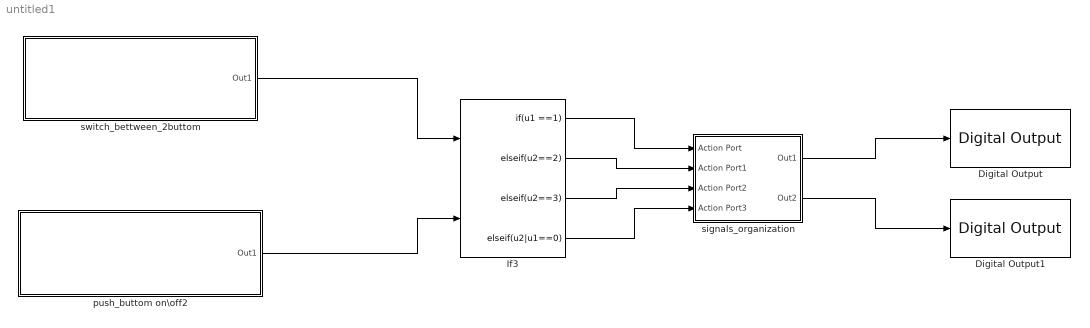
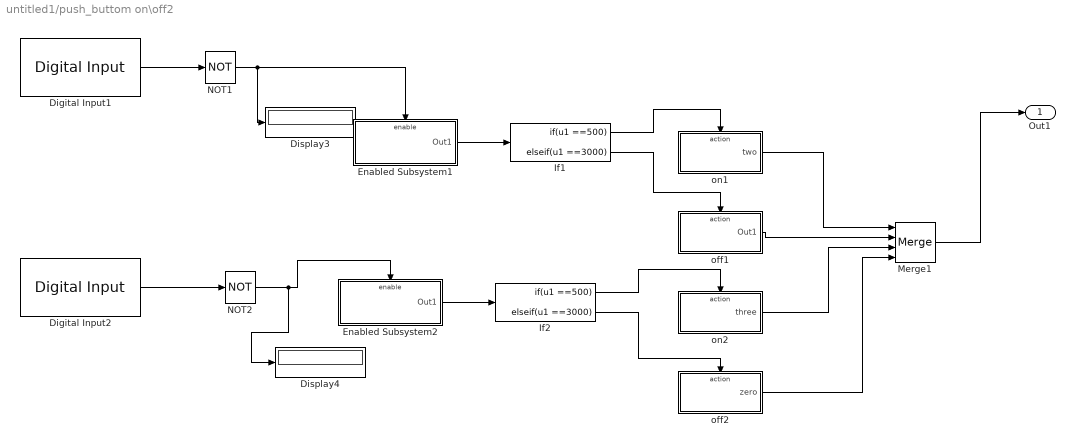
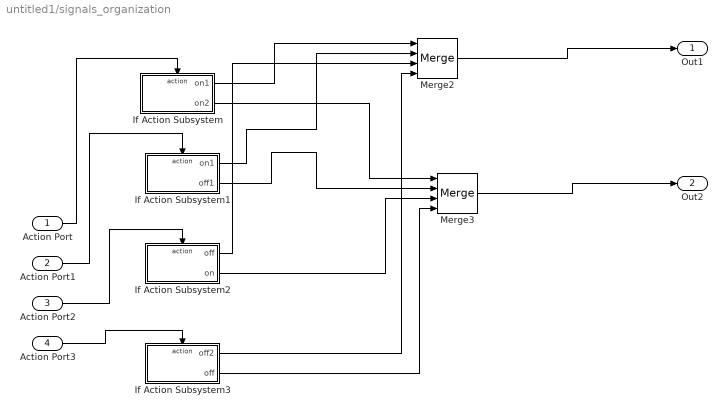
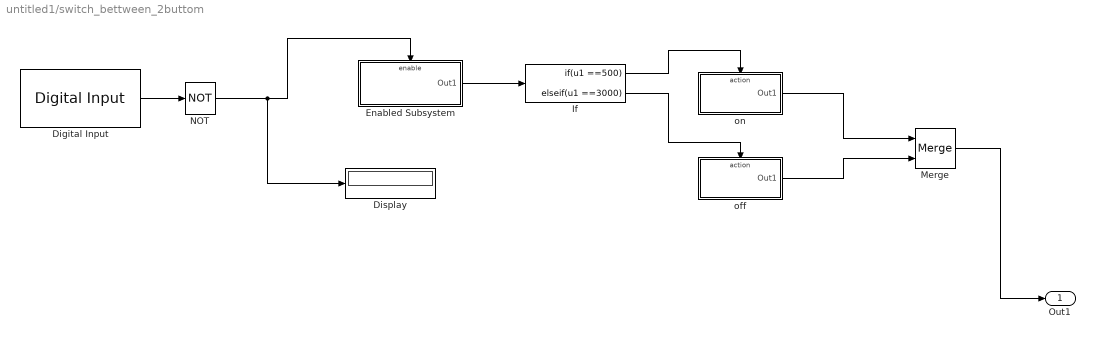
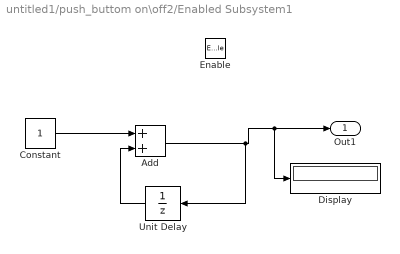
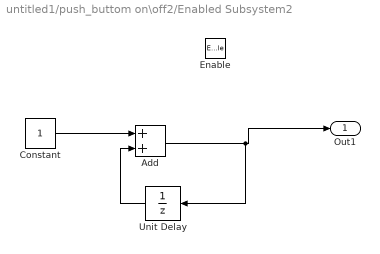
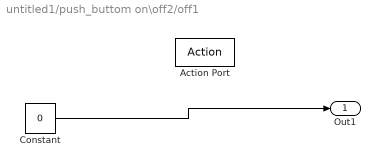
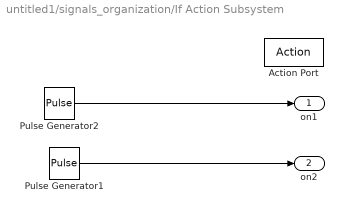
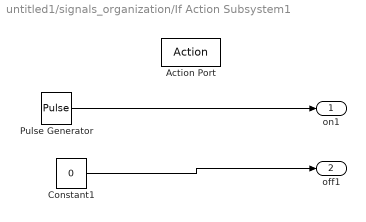
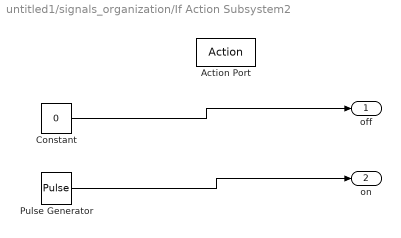
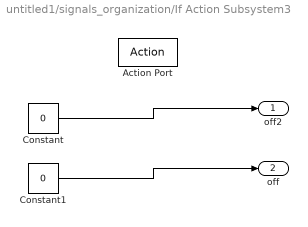
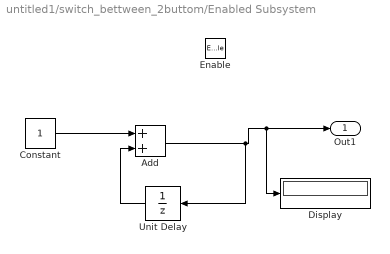
== system untitled1/push_buttom on\off2/off2 ==
  Action Port : ActionPort  ActionPortLabel=elseif(u1 ==3000)
  Constant : Constant  Value=0
  zero : Outport
  wires:
  Constant/1 -> zero/1

== system untitled1/push_buttom on\off2/on1 ==
  Action Port : ActionPort  ActionPortLabel=if(u1 ==500)
  Constant : Constant  Value=2
  two : Outport
  wires:
  Constant/1 -> two/1

== system untitled1/push_buttom on\off2/on2 ==
  Action Port : ActionPort  ActionPortLabel=if(u1 ==500)
  Constant : Constant  Value=3
  three : Outport
  wires:
  Constant/1 -> three/1

== system untitled1/switch_bettween_2buttom/off ==
  Action Port : ActionPort  ActionPortLabel=elseif(u1 ==3000)
  Constant : Constant  Value=0
  Out1 : Outport
  wires:
  Constant/1 -> Out1/1

== system untitled1/switch_bettween_2buttom/on ==
  Action Port : ActionPort  ActionPortLabel=if(u1 ==500)
  Constant : Constant
  Out1 : Outport
  wires:
  Constant/1 -> Out1/1

/*
 * File: untitled1.c
 *
 * Code generated for Simulink model 'untitled1'.
 *
 * Model version                  : 1.1
 * Simulink Coder version         : 9.8 (R2022b) 13-May-2022
 * C/C++ source code generated on : Mon Mar 25 17:41:33 2024
 *
 * Target selection: ert.tlc
 * Embedded hardware selection: Atmel->AVR
 * Code generation objectives: Unspecified
 * Validation result: Not run
 */

#include "untitled1.h"
#include "rtwtypes.h"
#include "untitled1_private.h"
#include <math.h>

/* Block signals (default storage) */
B_untitled1_T untitled1_B;

/* Block states (default storage) */
DW_untitled1_T untitled1_DW;

/* Real-time model */
static RT_MODEL_untitled1_T untitled1_M_;
RT_MODEL_untitled1_T *const untitled1_M = &untitled1_M_;

/*
 * Output and update for action system:
 *    '<S1>/off1'
 *    '<S3>/on'
 *    '<S3>/off'
 */
void untitled1_off1(real_T *rty_Out1, P_off1_untitled1_T *localP)
{
  /* SignalConversion generated from: '<S6>/Out1' incorporates:
   *  Constant: '<S6>/Constant'
   */
  *rty_Out1 = localP->Constant_Value;
}

real_T rt_roundd_snf(real_T u)
{
  real_T y;
  if (fabs(u) < 4.503599627370496E+15) {
    if (u >= 0.5) {
      y = floor(u + 0.5);
    } else if (u > -0.5) {
      y = u * 0.0;
    } else {
      y = ceil(u - 0.5);
    }
  } else {
    y = u;
  }

  return y;
}

/* Model step function */
void untitled1_step(void)
{
  real_T tmp;
  uint8_T tmp_0;
  boolean_T b_value;

  /* Reset subsysRan breadcrumbs */
  srClearBC(untitled1_DW.IfActionSubsystem_SubsysRanBC);

  /* Reset subsysRan breadcrumbs */
  srClearBC(untitled1_DW.IfActionSubsystem1_SubsysRanBC);

  /* Reset subsysRan breadcrumbs */
  srClearBC(untitled1_DW.IfActionSubsystem2_SubsysRanBC);

  /* Reset subsysRan breadcrumbs */
  srClearBC(untitled1_DW.IfActionSubsystem3_SubsysRanBC);

  /* Reset subsysRan breadcrumbs */
  srClearBC(untitled1_DW.EnabledSubsystem1_SubsysRanBC);

  /* Reset subsysRan breadcrumbs */
  srClearBC(untitled1_DW.EnabledSubsystem2_SubsysRanBC);

  /* Reset subsysRan breadcrumbs */
  srClearBC(untitled1_DW.on1_SubsysRanBC);

  /* Reset subsysRan breadcrumbs */
  srClearBC(untitled1_DW.off1.off1_SubsysRanBC);

  /* Reset subsysRan breadcrumbs */
  srClearBC(untitled1_DW.on2_SubsysRanBC);

  /* Reset subsysRan breadcrumbs */
  srClearBC(untitled1_DW.off2_SubsysRanBC);

  /* Reset subsysRan breadcrumbs */
  srClearBC(untitled1_DW.EnabledSubsystem_SubsysRanBC);

  /* MATLABSystem: '<S3>/Digital Input' */
  if (untitled1_DW.obj.SampleTime != untitled1_P.DigitalInput_SampleTime) {
    untitled1_DW.obj.SampleTime = untitled1_P.DigitalInput_SampleTime;
  }

  b_value = readDigitalPin(2);

  /* Logic: '<S3>/NOT' incorporates:
   *  MATLABSystem: '<S3>/Digital Input'
   */
  untitled1_B.NOT = !b_value;

  /* Outputs for Enabled SubSystem: '<S3>/Enabled Subsystem' incorporates:
   *  EnablePort: '<S14>/Enable'
   */
  if (untitled1_B.NOT) {
    if (!untitled1_DW.EnabledSubsystem_MODE) {
      /* InitializeConditions for UnitDelay: '<S14>/Unit Delay' */
      untitled1_DW.UnitDelay_DSTATE = untitled1_P.UnitDelay_InitialCondition_k;
      untitled1_DW.EnabledSubsystem_MODE = true;
    }

    /* Sum: '<S14>/Add' incorporates:
     *  Constant: '<S14>/Constant'
     *  UnitDelay: '<S14>/Unit Delay'
     */
    untitled1_B.Add = untitled1_P.Constant_Value_e +
      untitled1_DW.UnitDelay_DSTATE;

    /* Update for UnitDelay: '<S14>/Unit Delay' */
    untitled1_DW.UnitDelay_DSTATE = untitled1_B.Add;
    srUpdateBC(untitled1_DW.EnabledSubsystem_SubsysRanBC);
  } else {
    untitled1_DW.EnabledSubsystem_MODE = false;
  }

  /* End of Outputs for SubSystem: '<S3>/Enabled Subsystem' */

  /* If: '<S3>/If' */
  if (untitled1_B.Add == 500.0) {
    /* Outputs for IfAction SubSystem: '<S3>/on' incorporates:
     *  ActionPort: '<S16>/Action Port'
     */
    untitled1_off1(&untitled1_B.Merge, &untitled1_P.on);

    /* End of Outputs for SubSystem: '<S3>/on' */
  } else if (untitled1_B.Add == 3000.0) {
    /* Outputs for IfAction SubSystem: '<S3>/off' incorporates:
     *  ActionPort: '<S15>/Action Port'
     */
    untitled1_off1(&untitled1_B.Merge, &untitled1_P.off);

    /* End of Outputs for SubSystem: '<S3>/off' */
  }

  /* End of If: '<S3>/If' */
  /* MATLABSystem: '<S1>/Digital Input1' */
  if (untitled1_DW.obj_b.SampleTime != untitled1_P.DigitalInput1_SampleTime) {
    untitled1_DW.obj_b.SampleTime = untitled1_P.DigitalInput1_SampleTime;
  }

  b_value = readDigitalPin(4);

  /* Logic: '<S1>/NOT1' incorporates:
   *  MATLABSystem: '<S1>/Digital Input1'
   */
  untitled1_B.NOT1 = !b_value;

  /* Outputs for Enabled SubSystem: '<S1>/Enabled Subsystem1' incorporates:
   *  EnablePort: '<S4>/Enable'
   */
  if (untitled1_B.NOT1) {
    if (!untitled1_DW.EnabledSubsystem1_MODE) {
      /* InitializeConditions for UnitDelay: '<S4>/Unit Delay' */
      untitled1_DW.UnitDelay_DSTATE_g = untitled1_P.UnitDelay_InitialCondition;
      untitled1_DW.EnabledSubsystem1_MODE = true;
    }

    /* Sum: '<S4>/Add' incorporates:
     *  Constant: '<S4>/Constant'
     *  UnitDelay: '<S4>/Unit Delay'
     */
    untitled1_B.Add_p = untitled1_P.Constant_Value_c +
      untitled1_DW.UnitDelay_DSTATE_g;

    /* Update for UnitDelay: '<S4>/Unit Delay' */
    untitled1_DW.UnitDelay_DSTATE_g = untitled1_B.Add_p;
    srUpdateBC(untitled1_DW.EnabledSubsystem1_SubsysRanBC);
  } else {
    untitled1_DW.EnabledSubsystem1_MODE = false;
  }

  /* End of Outputs for SubSystem: '<S1>/Enabled Subsystem1' */

  /* If: '<S1>/If1' */
  if (untitled1_B.Add_p == 500.0) {
    /* Outputs for IfAction SubSystem: '<S1>/on1' incorporates:
     *  ActionPort: '<S8>/Action Port'
     */
    /* Merge: '<S1>/Merge1' incorporates:
     *  Constant: '<S8>/Constant'
     *  SignalConversion generated from: '<S8>/two'
     */
    untitled1_B.Merge1 = untitled1_P.Constant_Value_o;

    /* End of Outputs for SubSystem: '<S1>/on1' */

    /* Update for IfAction SubSystem: '<S1>/on1' incorporates:
     *  ActionPort: '<S8>/Action Port'
     */
    /* Update for If: '<S1>/If1' */
    srUpdateBC(untitled1_DW.on1_SubsysRanBC);

    /* End of Update for SubSystem: '<S1>/on1' */
  } else if (untitled1_B.Add_p == 3000.0) {
    /* Outputs for IfAction SubSystem: '<S1>/off1' incorporates:
     *  ActionPort: '<S6>/Action Port'
     */
    untitled1_off1(&untitled1_B.Merge1, &untitled1_P.off1);

    /* End of Outputs for SubSystem: '<S1>/off1' */
  }

  /* End of If: '<S1>/If1' */

  /* MATLABSystem: '<S1>/Digital Input2' */
  if (untitled1_DW.obj_l.SampleTime != untitled1_P.DigitalInput2_SampleTime) {
    untitled1_DW.obj_l.SampleTime = untitled1_P.DigitalInput2_SampleTime;
  }

  b_value = readDigitalPin(7);

  /* Logic: '<S1>/NOT2' incorporates:
   *  MATLABSystem: '<S1>/Digital Input2'
   */
  untitled1_B.NOT2 = !b_value;

  /* Outputs for Enabled SubSystem: '<S1>/Enabled Subsystem2' incorporates:
   *  EnablePort: '<S5>/Enable'
   */
  if (untitled1_B.NOT2) {
    if (!untitled1_DW.EnabledSubsystem2_MODE) {
      /* InitializeConditions for UnitDelay: '<S5>/Unit Delay' */
      untitled1_DW.UnitDelay_DSTATE_c = untitled1_P.UnitDelay_InitialCondition_d;
      untitled1_DW.EnabledSubsystem2_MODE = true;
    }

    /* Sum: '<S5>/Add' incorporates:
     *  Constant: '<S5>/Constant'
     *  UnitDelay: '<S5>/Unit Delay'
     */
    untitled1_DW.UnitDelay_DSTATE_c += untitled1_P.Constant_Value_i;
    srUpdateBC(untitled1_DW.EnabledSubsystem2_SubsysRanBC);
  } else {
    untitled1_DW.EnabledSubsystem2_MODE = false;
  }

  /* End of Outputs for SubSystem: '<S1>/Enabled Subsystem2' */

  /* If: '<S1>/If2' incorporates:
   *  UnitDelay: '<S5>/Unit Delay'
   */
  if (untitled1_DW.UnitDelay_DSTATE_c == 500.0) {
    /* Outputs for IfAction SubSystem: '<S1>/on2' incorporates:
     *  ActionPort: '<S9>/Action Port'
     */
    /* Merge: '<S1>/Merge1' incorporates:
     *  Constant: '<S9>/Constant'
     *  SignalConversion generated from: '<S9>/three'
     */
    untitled1_B.Merge1 = untitled1_P.Constant_Value_b;

    /* End of Outputs for SubSystem: '<S1>/on2' */

    /* Update for IfAction SubSystem: '<S1>/on2' incorporates:
     *  ActionPort: '<S9>/Action Port'
     */
    /* Update for If: '<S1>/If2' */
    srUpdateBC(untitled1_DW.on2_SubsysRanBC);

    /* End of Update for SubSystem: '<S1>/on2' */
  } else if (untitled1_DW.UnitDelay_DSTATE_c == 3000.0) {
    /* Outputs for IfAction SubSystem: '<S1>/off2' incorporates:
     *  ActionPort: '<S7>/Action Port'
     */
    /* Merge: '<S1>/Merge1' incorporates:
     *  Constant: '<S7>/Constant'
     *  SignalConversion generated from: '<S7>/zero'
     */
    untitled1_B.Merge1 = untitled1_P.Constant_Value_j;

    /* End of Outputs for SubSystem: '<S1>/off2' */

    /* Update for IfAction SubSystem: '<S1>/off2' incorporates:
     *  ActionPort: '<S7>/Action Port'
     */
    /* Update for If: '<S1>/If2' */
    srUpdateBC(untitled1_DW.off2_SubsysRanBC);

    /* End of Update for SubSystem: '<S1>/off2' */
  }

  /* End of If: '<S1>/If2' */
  /* If: '<Root>/If3' */
  if (untitled1_B.Merge == 1.0) {
    /* Outputs for IfAction SubSystem: '<S2>/If Action Subsystem' incorporates:
     *  ActionPort: '<S10>/Action Port'
     */
    /* Merge: '<S2>/Merge2' incorporates:
     *  DiscretePulseGenerator: '<S10>/Pulse Generator2'
     */
    untitled1_B.Merge2 = (untitled1_DW.clockTickCounter_f <
                          untitled1_P.PulseGenerator2_Duty) &&
      (untitled1_DW.clockTickCounter_f >= 0L) ? untitled1_P.PulseGenerator2_Amp :
      0.0;

    /* DiscretePulseGenerator: '<S10>/Pulse Generator2' */
    if (untitled1_DW.clockTickCounter_f >= untitled1_P.PulseGenerator2_Period -
        1.0) {
      untitled1_DW.clockTickCounter_f = 0L;
    } else {
      untitled1_DW.clockTickCounter_f++;
    }

    /* Merge: '<S2>/Merge3' incorporates:
     *  DiscretePulseGenerator: '<S10>/Pulse Generator1'
     */
    untitled1_B.Merge3 = (untitled1_DW.clockTickCounter_a3 <
                          untitled1_P.PulseGenerator1_Duty) &&
      (untitled1_DW.clockTickCounter_a3 >= 0L) ? untitled1_P.PulseGenerator1_Amp
      : 0.0;

    /* DiscretePulseGenerator: '<S10>/Pulse Generator1' */
    if (untitled1_DW.clockTickCounter_a3 >= untitled1_P.PulseGenerator1_Period -
        1.0) {
      untitled1_DW.clockTickCounter_a3 = 0L;
    } else {
      untitled1_DW.clockTickCounter_a3++;
    }

    /* End of Outputs for SubSystem: '<S2>/If Action Subsystem' */

    /* Update for IfAction SubSystem: '<S2>/If Action Subsystem' incorporates:
     *  ActionPort: '<S10>/Action Port'
     */
    /* Update for If: '<Root>/If3' */
    srUpdateBC(untitled1_DW.IfActionSubsystem_SubsysRanBC);

    /* End of Update for SubSystem: '<S2>/If Action Subsystem' */
  } else if (untitled1_B.Merge1 == 2.0) {
    /* Outputs for IfAction SubSystem: '<S2>/If Action Subsystem1' incorporates:
     *  ActionPort: '<S11>/Action Port'
     */
    /* Merge: '<S2>/Merge3' incorporates:
     *  Constant: '<S11>/Constant1'
     *  SignalConversion generated from: '<S11>/off1'
     */
    untitled1_B.Merge3 = untitled1_P.Constant1_Value;

    /* Merge: '<S2>/Merge2' incorporates:
     *  DiscretePulseGenerator: '<S11>/Pulse Generator'
     */
    untitled1_B.Merge2 = (untitled1_DW.clockTickCounter_a <
                          untitled1_P.PulseGenerator_Duty) &&
      (untitled1_DW.clockTickCounter_a >= 0L) ? untitled1_P.PulseGenerator_Amp :
      0.0;

    /* DiscretePulseGenerator: '<S11>/Pulse Generator' */
    if (untitled1_DW.clockTickCounter_a >= untitled1_P.PulseGenerator_Period -
        1.0) {
      untitled1_DW.clockTickCounter_a = 0L;
    } else {
      untitled1_DW.clockTickCounter_a++;
    }

    /* End of Outputs for SubSystem: '<S2>/If Action Subsystem1' */

    /* Update for IfAction SubSystem: '<S2>/If Action Subsystem1' incorporates:
     *  ActionPort: '<S11>/Action Port'
     */
    /* Update for If: '<Root>/If3' */
    srUpdateBC(untitled1_DW.IfActionSubsystem1_SubsysRanBC);

    /* End of Update for SubSystem: '<S2>/If Action Subsystem1' */
  } else if (untitled1_B.Merge1 == 3.0) {
    /* Outputs for IfAction SubSystem: '<S2>/If Action Subsystem2' incorporates:
     *  ActionPort: '<S12>/Action Port'
     */
    /* Merge: '<S2>/Merge2' incorporates:
     *  Constant: '<S12>/Constant'
     *  SignalConversion generated from: '<S12>/off'
     */
    untitled1_B.Merge2 = untitled1_P.Constant_Value;

    /* Merge: '<S2>/Merge3' incorporates:
     *  DiscretePulseGenerator: '<S12>/Pulse Generator'
     */
    untitled1_B.Merge3 = (untitled1_DW.clockTickCounter <
                          untitled1_P.PulseGenerator_Duty_a) &&
      (untitled1_DW.clockTickCounter >= 0L) ? untitled1_P.PulseGenerator_Amp_b :
      0.0;

    /* DiscretePulseGenerator: '<S12>/Pulse Generator' */
    if (untitled1_DW.clockTickCounter >= untitled1_P.PulseGenerator_Period_n -
        1.0) {
      untitled1_DW.clockTickCounter = 0L;
    } else {
      untitled1_DW.clockTickCounter++;
    }

    /* End of Outputs for SubSystem: '<S2>/If Action Subsystem2' */

    /* Update for IfAction SubSystem: '<S2>/If Action Subsystem2' incorporates:
     *  ActionPort: '<S12>/Action Port'
     */
    /* Update for If: '<Root>/If3' */
    srUpdateBC(untitled1_DW.IfActionSubsystem2_SubsysRanBC);

    /* End of Update for SubSystem: '<S2>/If Action Subsystem2' */
  } else if ((untitled1_B.Merge1 != 0.0) || (untitled1_B.Merge == 0.0)) {
    /* Outputs for IfAction SubSystem: '<S2>/If Action Subsystem3' incorporates:
     *  ActionPort: '<S13>/Action Port'
     */
    /* Merge: '<S2>/Merge2' incorporates:
     *  Constant: '<S13>/Constant'
     *  SignalConversion generated from: '<S13>/off2'
     */
    untitled1_B.Merge2 = untitled1_P.Constant_Value_k;

    /* Merge: '<S2>/Merge3' incorporates:
     *  Constant: '<S13>/Constant1'
     *  SignalConversion generated from: '<S13>/off'
     */
    untitled1_B.Merge3 = untitled1_P.Constant1_Value_i;

    /* End of Outputs for SubSystem: '<S2>/If Action Subsystem3' */

    /* Update for IfAction SubSystem: '<S2>/If Action Subsystem3' incorporates:
     *  ActionPort: '<S13>/Action Port'
     */
    /* Update for If: '<Root>/If3' */
    srUpdateBC(untitled1_DW.IfActionSubsystem3_SubsysRanBC);

    /* End of Update for SubSystem: '<S2>/If Action Subsystem3' */
  }

  /* End of If: '<Root>/If3' */

  /* MATLABSystem: '<Root>/Digital Output' */
  tmp = rt_roundd_snf(untitled1_B.Merge2);
  if (tmp < 256.0) {
    if (tmp >= 0.0) {
      tmp_0 = (uint8_T)tmp;
    } else {
      tmp_0 = 0U;
    }
  } else {
    tmp_0 = MAX_uint8_T;
  }

  writeDigitalPin(8, tmp_0);

  /* End of MATLABSystem: '<Root>/Digital Output' */

  /* MATLABSystem: '<Root>/Digital Output1' */
  tmp = rt_roundd_snf(untitled1_B.Merge3);
  if (tmp < 256.0) {
    if (tmp >= 0.0) {
      tmp_0 = (uint8_T)tmp;
    } else {
      tmp_0 = 0U;
    }
  } else {
    tmp_0 = MAX_uint8_T;
  }

  writeDigitalPin(9, tmp_0);

  /* End of MATLABSystem: '<Root>/Digital Output1' */
  {                                    /* Sample time: [0.001s, 0.0s] */
  }

  /* Update absolute time for base rate */
  /* The "clockTick0" counts the number of times the code of this task has
   * been executed. The absolute time is the multiplication of "clockTick0"
   * and "Timing.stepSize0". Size of "clockTick0" ensures timer will not
   * overflow during the application lifespan selected.
   */
  untitled1_M->Timing.taskTime0 =
    ((time_T)(++untitled1_M->Timing.clockTick0)) * untitled1_M->Timing.stepSize0;
}
